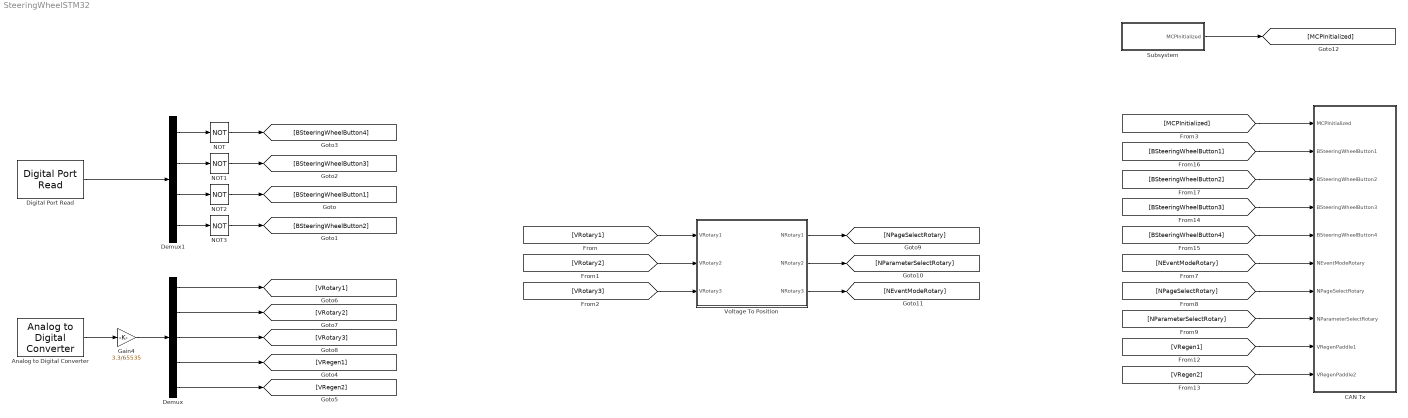
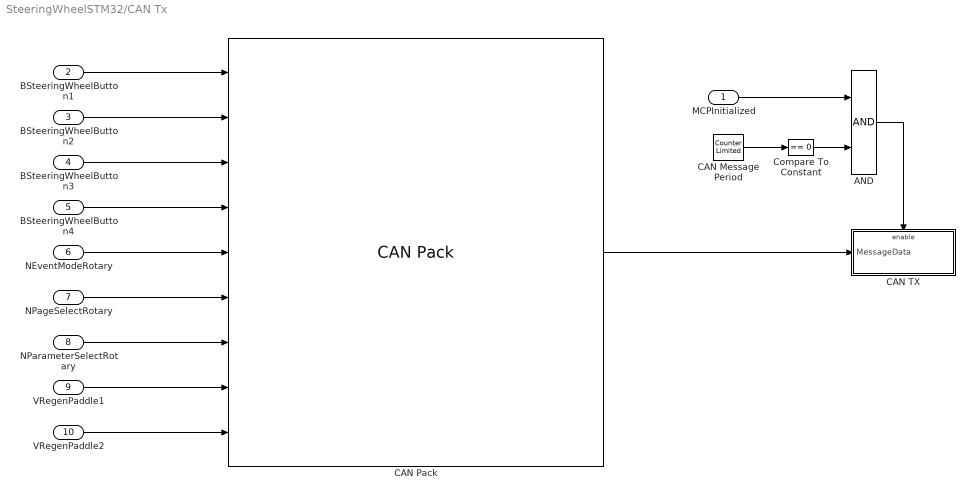
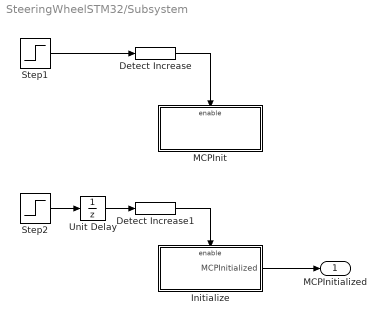
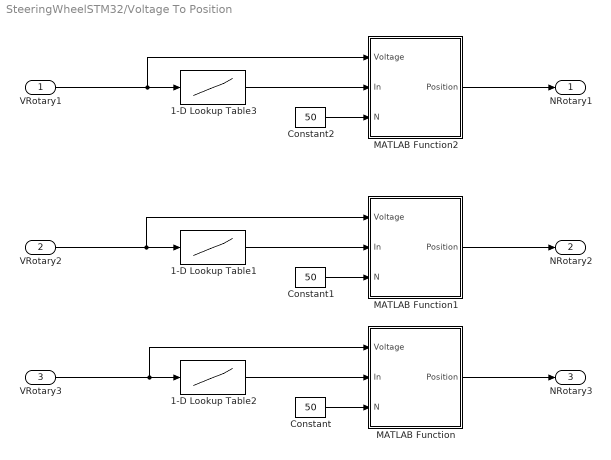
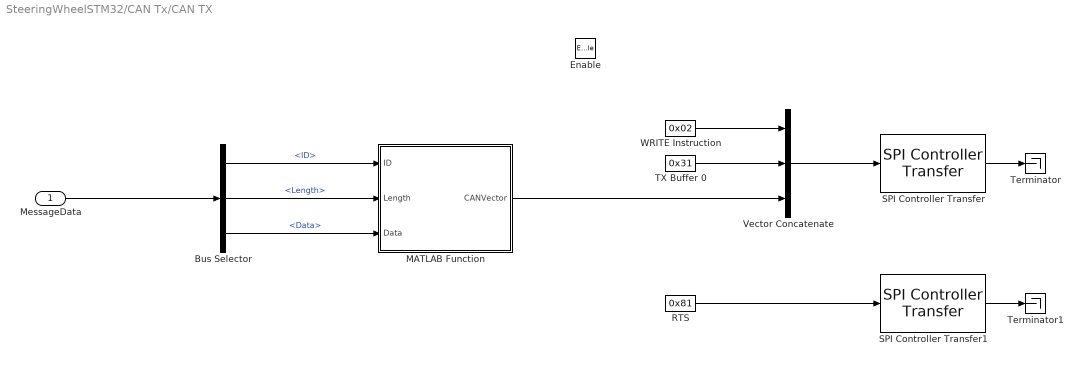
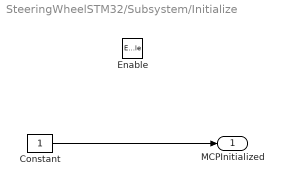
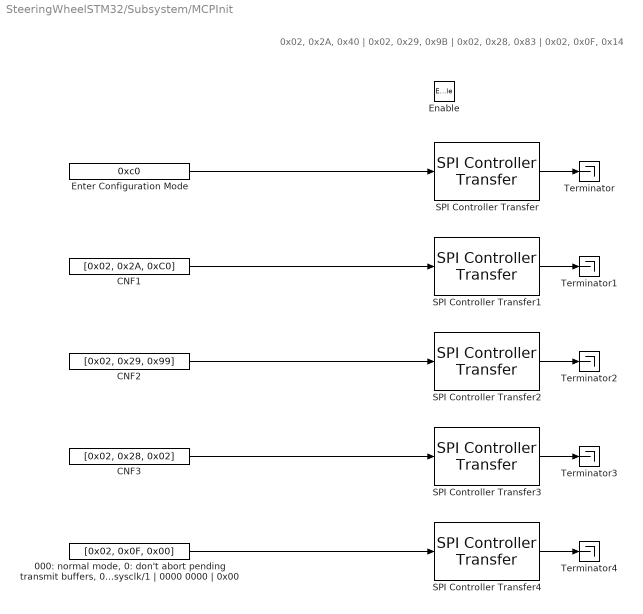
== matlab function SteeringWheelSTM32/CAN Tx/CAN TX/MATLAB Function ==
function CANVector = ConvertToVector(ID, Length, Data)
    %#codegen
    id_u16 = uint16(ID);
    len_u8 = uint8(Length);

    CANVector = zeros(1, 13, 'uint8');  % 13 bytes only — no instruction

    CANVector(1) = uint8(bitshift(id_u16, -3));              % SIDH: ID[10:3]
    CANVector(2) = uint8(bitshift(bitand(id_u16, uint16(7)), 5)); % SIDL: ID[2:0]<<5, EXIDE=0
    CANVector(3) = uint8(0);   % EID8 unused
    CANVector(4) = uint8(0);   % EID0 unused
    CANVector(5) = bitand(len_u8, uint8(15));  % DLC
    for i = 1:8
        CANVector(5+i) = uint8(Data(i));
    end

== matlab function SteeringWheelSTM32/Voltage To Position/MATLAB Function ==
function Position = Debounce(Voltage, In, N)
    persistent current candidate count;
    
    if isempty(current)
        current = In;
        candidate = In;
        count = 0;
    end
    
    % IGNORE reading entirely if voltage is near 0 (in transition)
    if Voltage < 0.15
        Position = current;  % just hold, don't even consider updating
        return;
    end
    
    if In == candidate
        count = count + 1;
    else
        candidate = In;
        count = 0;
    end
    
    if count >= N
        current = candidate;
    end
    
    Position = current;
end

== matlab function SteeringWheelSTM32/Voltage To Position/MATLAB Function1 ==
function Position = Debounce(Voltage, In, N)
    persistent current candidate count;
    
    if isempty(current)
        current = In;
        candidate = In;
        count = 0;
    end
    
    % IGNORE reading entirely if voltage is near 0 (in transition)
    if Voltage < 0.15
        Position = current;  % just hold, don't even consider updating
        return;
    end
    
    if In == candidate
        count = count + 1;
    else
        candidate = In;
        count = 0;
    end
    
    if count >= N
        current = candidate;
    end
    
    Position = current;
end

== matlab function SteeringWheelSTM32/Voltage To Position/MATLAB Function2 ==
function Position = Debounce(Voltage, In, N)
    persistent current candidate count;
    
    if isempty(current)
        current = In;
        candidate = In;
        count = 0;
    end
    
    % IGNORE reading entirely if voltage is near 0 (in transition)
    if Voltage < 0.15
        Position = current;  % just hold, don't even consider updating
        return;
    end
    
    if In == candidate
        count = count + 1;
    else
        candidate = In;
        count = 0;
    end
    
    if count >= N
        current = candidate;
    end
    
    Position = current;
end

/*
 * Academic License - for use in teaching, academic research, and meeting
 * course requirements at degree granting institutions only.  Not for
 * government, commercial, or other organizational use.
 *
 * File: SteeringWheelSTM32.c
 *
 * Code generated for Simulink model 'SteeringWheelSTM32'.
 *
 * Model version                  : 13.148
 * Simulink Coder version         : 24.2 (R2024b) 21-Jun-2024
 * C/C++ source code generated on : Mon Jun  8 11:07:56 2026
 *
 * Target selection: ert.tlc
 * Embedded hardware selection: ARM Compatible->ARM Cortex-M
 * Code generation objectives: Unspecified
 * Validation result: Not run
 */

#include "SteeringWheelSTM32.h"
#include "rtwtypes.h"
#include "SteeringWheelSTM32_types.h"
#include "SteeringWheelSTM32_private.h"
#include "mw_stm32_spi_ll.h"
#include "stm_adc_ll.h"

/* Block signals (default storage) */
B_SteeringWheelSTM32_T SteeringWheelSTM32_B;

/* Block states (default storage) */
DW_SteeringWheelSTM32_T SteeringWheelSTM32_DW;

/* Real-time model */
static RT_MODEL_SteeringWheelSTM32_T SteeringWheelSTM32_M_;
RT_MODEL_SteeringWheelSTM32_T *const SteeringWheelSTM32_M =
  &SteeringWheelSTM32_M_;

/* Forward declaration for local functions */
static void SteeringWheelS_SystemCore_setup(stm32cube_blocks_AnalogInputF_T *obj);
uint32_T plook_u32f_binckan(real32_T u, const real32_T bp[], uint32_T maxIndex)
{
  uint32_T bpIndex;

  /* Prelookup - Index only
     Index Search method: 'binary'
     Interpolation method: 'Use nearest'
     Extrapolation method: 'Clip'
     Use previous index: 'off'
     Use last breakpoint for index at or above upper limit: 'on'
     Remove protection against out-of-range input in generated code: 'off'
   */
  if (u <= bp[0U]) {
    bpIndex = 0U;
  } else if (u < bp[maxIndex]) {
    bpIndex = binsearch_u32f(u, bp, maxIndex >> 1U, maxIndex);
    if ((bpIndex < maxIndex) && (bp[bpIndex + 1U] - u <= u - bp[bpIndex])) {
      bpIndex++;
    }
  } else {
    bpIndex = maxIndex;
  }

  return bpIndex;
}

uint32_T binsearch_u32f(real32_T u, const real32_T bp[], uint32_T startIndex,
  uint32_T maxIndex)
{
  uint32_T bpIdx;
  uint32_T bpIndex;
  uint32_T iRght;

  /* Binary Search */
  bpIdx = startIndex;
  bpIndex = 0U;
  iRght = maxIndex;
  while (iRght - bpIndex > 1U) {
    if (u < bp[bpIdx]) {
      iRght = bpIdx;
    } else {
      bpIndex = bpIdx;
    }

    bpIdx = (iRght + bpIndex) >> 1U;
  }

  return bpIndex;
}

/* System initialize for atomic system: */
void Ste_SPIControllerTransfer1_Init(DW_SPIControllerTransfer1_Ste_T *localDW)
{
  STM32_SPI_ModuleStruct_T b;

  /* Start for MATLABSystem: '<S9>/SPI Controller Transfer1' */
  localDW->obj.matlabCodegenIsDeleted = false;
  localDW->objisempty = true;
  localDW->obj.isInitialized = 1;
  b.PeripheralPtr = SPI1;
  localDW->obj.MW_SPI_HANDLE = SPI_STM32_Init(&b);
  MW_STM32_SPI_SetFormat(localDW->obj.MW_SPI_HANDLE, 0U, 1792U, MW_SPI_MODE_2);
  localDW->obj.isSetupComplete = true;
}

/* Output and update for atomic system: */
void Steering_SPIControllerTransfer1(uint8_T rtu_0,
  DW_SPIControllerTransfer1_Ste_T *localDW)
{
  uint8_T rdDataRaw;

  /* MATLABSystem: '<S9>/SPI Controller Transfer1' */
  rdDataRaw = MW_STM32_SPI_SetFormat(localDW->obj.MW_SPI_HANDLE, 0U, 1792U,
    MW_SPI_MODE_2);
  if (rdDataRaw == 0) {
    GPIO_TypeDef * portNameLoc;
    portNameLoc = GPIOA;
    LL_GPIO_ResetOutputPin(portNameLoc, 16U);
    MW_SPI_MasterWriteRead_Databits(localDW->obj.MW_SPI_HANDLE, &rtu_0,
      &rdDataRaw, 0, 1U, 1, 10U);
    LL_GPIO_SetOutputPin(portNameLoc, 16U);
  }

  /* End of MATLABSystem: '<S9>/SPI Controller Transfer1' */
}

/* Termination for atomic system: */
void Ste_SPIControllerTransfer1_Term(DW_SPIControllerTransfer1_Ste_T *localDW)
{
  /* Terminate for MATLABSystem: '<S9>/SPI Controller Transfer1' */
  if (!localDW->obj.matlabCodegenIsDeleted) {
    localDW->obj.matlabCodegenIsDeleted = true;
    if ((localDW->obj.isInitialized == 1) && localDW->obj.isSetupComplete) {
      uint32_T SPIPinsLoc;
      SPIPinsLoc = MW_UNDEFINED_VALUE;
      MW_SPI_Close(localDW->obj.MW_SPI_HANDLE, SPIPinsLoc, SPIPinsLoc,
                   SPIPinsLoc, 4U);
    }
  }

  /* End of Terminate for MATLABSystem: '<S9>/SPI Controller Transfer1' */
}

/* System initialize for atomic system: */
void S_SPIControllerTransfer1_d_Init(DW_SPIControllerTransfer1_S_f_T *localDW)
{
  STM32_SPI_ModuleStruct_T b;

  /* Start for MATLABSystem: '<S19>/SPI Controller Transfer1' */
  localDW->obj.matlabCodegenIsDeleted = false;
  localDW->objisempty = true;
  localDW->obj.isInitialized = 1;
  b.PeripheralPtr = SPI1;
  localDW->obj.MW_SPI_HANDLE = SPI_STM32_Init(&b);
  MW_STM32_SPI_SetFormat(localDW->obj.MW_SPI_HANDLE, 0U, 1792U, MW_SPI_MODE_2);
  localDW->obj.isSetupComplete = true;
}

/* Output and update for atomic system: */
void Steeri_SPIControllerTransfer1_p(const uint8_T rtu_0[3],
  DW_SPIControllerTransfer1_S_f_T *localDW)
{
  uint8_T tmp[3];
  uint8_T status;

  /* MATLABSystem: '<S19>/SPI Controller Transfer1' */
  status = MW_STM32_SPI_SetFormat(localDW->obj.MW_SPI_HANDLE, 0U, 1792U,
    MW_SPI_MODE_2);
  if (status == 0) {
    GPIO_TypeDef * portNameLoc;
    portNameLoc = GPIOA;
    LL_GPIO_ResetOutputPin(portNameLoc, 16U);
    MW_SPI_MasterWriteRead_Databits(localDW->obj.MW_SPI_HANDLE, &rtu_0[0], &tmp
      [0], 0, 3U, 1, 10U);
    LL_GPIO_SetOutputPin(portNameLoc, 16U);
  }

  /* End of MATLABSystem: '<S19>/SPI Controller Transfer1' */
}

/* Termination for atomic system: */
void S_SPIControllerTransfer1_o_Term(DW_SPIControllerTransfer1_S_f_T *localDW)
{
  /* Terminate for MATLABSystem: '<S19>/SPI Controller Transfer1' */
  if (!localDW->obj.matlabCodegenIsDeleted) {
    localDW->obj.matlabCodegenIsDeleted = true;
    if ((localDW->obj.isInitialized == 1) && localDW->obj.isSetupComplete) {
      uint32_T SPIPinsLoc;
      SPIPinsLoc = MW_UNDEFINED_VALUE;
      MW_SPI_Close(localDW->obj.MW_SPI_HANDLE, SPIPinsLoc, SPIPinsLoc,
                   SPIPinsLoc, 4U);
    }
  }

  /* End of Terminate for MATLABSystem: '<S19>/SPI Controller Transfer1' */
}

/*
 * Output and update for atomic system:
 *    '<S5>/MATLAB Function1'
 *    '<S5>/MATLAB Function2'
 */
void SteeringWheelST_MATLABFunction1(real32_T rtu_Voltage, uint8_T rtu_In,
  real_T rtu_N, uint8_T *rty_Position, DW_MATLABFunction1_SteeringWh_T *localDW)
{
  if (!localDW->current_not_empty) {
    localDW->current = rtu_In;
    localDW->current_not_empty = true;
    localDW->candidate = rtu_In;
  }

  if (rtu_Voltage < 0.15) {
    *rty_Position = localDW->current;
  } else {
    if (rtu_In == localDW->candidate) {
      localDW->count++;
    } else {
      localDW->candidate = rtu_In;
      localDW->count = 0.0;
    }

    if (localDW->count >= rtu_N) {
      localDW->current = localDW->candidate;
    }

    *rty_Position = localDW->current;
  }
}

static void SteeringWheelS_SystemCore_setup(stm32cube_blocks_AnalogInputF_T *obj)
{
  ADC_Type_T adcStructLoc;

  /* Start for MATLABSystem: '<S7>/Analog to Digital Converter' */
  obj->isInitialized = 1;
  obj->ADCInternalBuffer = GET_ADC1_DMA_BUFFER();
  adcStructLoc.InjectedNoOfConversion = 0U;
  adcStructLoc.InternalBufferPtr = obj->ADCInternalBuffer;
  adcStructLoc.peripheralPtr = ADC1;
  adcStructLoc.dmaPeripheralPtr = DMA1;
  adcStructLoc.dmastream = LL_DMA_STREAM_0;
  adcStructLoc.DataTransferMode = ADC_DMA_CIRCULAR;
  adcStructLoc.DmaTransferMode = ADC_DMA_TRANSFER_LIMITED;
  adcStructLoc.InternalBufferSize = 5U;
  adcStructLoc.RegularNoOfConversion = 5U;
  obj->ADCHandle = ADC_Handle_Init(&adcStructLoc, ADC_DMA_INTERRUPT_MODE, 1,
    ADC_READ, LL_ADC_REG_SEQ_SCAN_ENABLE_5RANKS);
  enableADCAutomaticCalibration(obj->ADCHandle, (uint32_T)LL_ADC_CALIB_OFFSET, 2);
  enableADC(obj->ADCHandle);
  startADCConversionForExternalTrigger(obj->ADCHandle, 1);
  obj->isSetupComplete = true;
}

/* Model step function */
void SteeringWheelSTM32_step(void)
{
  GPIO_TypeDef * portNameLoc;
  real_T rtb_UnitDelay;
  int32_T i;
  uint32_T rtb_AnalogtoDigitalConverter_0[5];
  uint32_T pinReadLoc;
  uint8_T rtb_VectorConcatenate[15];
  uint8_T tmp[15];
  uint8_T rtb_uDLookupTable2;
  boolean_T rtb_Step1_tmp;

  /* MATLABSystem: '<S7>/Analog to Digital Converter' */
  regularReadADCDMA(SteeringWheelSTM32_DW.obj.ADCHandle, ADC_READ,
                    &rtb_AnalogtoDigitalConverter_0[0]);
  for (i = 0; i < 5; i++) {
    /* Gain: '<Root>/Gain4' incorporates:
     *  MATLABSystem: '<S7>/Analog to Digital Converter'
     */
    SteeringWheelSTM32_B.Gain4[i] = 5.03547708E-5F * (real32_T)
      rtb_AnalogtoDigitalConverter_0[i];
  }

  /* MATLABSystem: '<S15>/Digital Port Read' */
  pinReadLoc = LL_GPIO_ReadInputPort(GPIOA);

  /* Logic: '<Root>/NOT2' incorporates:
   *  MATLABSystem: '<S15>/Digital Port Read'
   * */
  SteeringWheelSTM32_B.NOT2 = ((pinReadLoc & 2048U) == 0U);

  /* Logic: '<Root>/NOT3' incorporates:
   *  MATLABSystem: '<S15>/Digital Port Read'
   * */
  SteeringWheelSTM32_B.NOT3 = ((pinReadLoc & 4096U) == 0U);

  /* Logic: '<Root>/NOT1' incorporates:
   *  MATLABSystem: '<S15>/Digital Port Read'
   * */
  SteeringWheelSTM32_B.NOT1 = ((pinReadLoc & 1024U) == 0U);

  /* Logic: '<Root>/NOT' incorporates:
   *  MATLABSystem: '<S15>/Digital Port Read'
   * */
  SteeringWheelSTM32_B.NOT = ((pinReadLoc & 512U) == 0U);

  /* Lookup_n-D: '<S5>/1-D Lookup Table2' */
  rtb_uDLookupTable2 = SteeringWheelSTM32_ConstP.pooled5[plook_u32f_binckan
    (SteeringWheelSTM32_B.Gain4[2], SteeringWheelSTM32_ConstP.pooled4, 15U)];

  /* MATLAB Function: '<S5>/MATLAB Function' incorporates:
   *  Constant: '<S5>/Constant'
   */
  if (!SteeringWheelSTM32_DW.current_not_empty) {
    SteeringWheelSTM32_DW.current = rtb_uDLookupTable2;
    SteeringWheelSTM32_DW.current_not_empty = true;
    SteeringWheelSTM32_DW.candidate = rtb_uDLookupTable2;
  }

  if (SteeringWheelSTM32_B.Gain4[2] < 0.15) {
    SteeringWheelSTM32_B.Position_n = SteeringWheelSTM32_DW.current;
  } else {
    if (rtb_uDLookupTable2 == SteeringWheelSTM32_DW.candidate) {
      SteeringWheelSTM32_DW.count++;
    } else {
      SteeringWheelSTM32_DW.candidate = rtb_uDLookupTable2;
      SteeringWheelSTM32_DW.count = 0.0;
    }

    if (SteeringWheelSTM32_DW.count >= 50.0) {
      SteeringWheelSTM32_DW.current = SteeringWheelSTM32_DW.candidate;
    }

    SteeringWheelSTM32_B.Position_n = SteeringWheelSTM32_DW.current;
  }

  /* End of MATLAB Function: '<S5>/MATLAB Function' */

  /* MATLAB Function: '<S5>/MATLAB Function2' incorporates:
   *  Constant: '<S5>/Constant2'
   *  Lookup_n-D: '<S5>/1-D Lookup Table3'
   */
  SteeringWheelST_MATLABFunction1(SteeringWheelSTM32_B.Gain4[0],
    SteeringWheelSTM32_ConstP.pooled5[plook_u32f_binckan
    (SteeringWheelSTM32_B.Gain4[0], SteeringWheelSTM32_ConstP.pooled4, 15U)],
    50.0, &SteeringWheelSTM32_B.Position,
    &SteeringWheelSTM32_DW.sf_MATLABFunction2);

  /* MATLAB Function: '<S5>/MATLAB Function1' incorporates:
   *  Constant: '<S5>/Constant1'
   *  Lookup_n-D: '<S5>/1-D Lookup Table1'
   */
  SteeringWheelST_MATLABFunction1(SteeringWheelSTM32_B.Gain4[1],
    SteeringWheelSTM32_ConstP.pooled5[plook_u32f_binckan
    (SteeringWheelSTM32_B.Gain4[1], SteeringWheelSTM32_ConstP.pooled4, 15U)],
    50.0, &SteeringWheelSTM32_B.Position_e,
    &SteeringWheelSTM32_DW.sf_MATLABFunction1);

  /* S-Function (scanpack): '<S2>/CAN Pack' */
  /* S-Function (scanpack): '<S2>/CAN Pack' */
  SteeringWheelSTM32_B.CANPack.ID = 507U;
  SteeringWheelSTM32_B.CANPack.Length = 6U;
  SteeringWheelSTM32_B.CANPack.Extended = 0U;
  SteeringWheelSTM32_B.CANPack.Remote = 0;
  SteeringWheelSTM32_B.CANPack.Data[0] = 0;
  SteeringWheelSTM32_B.CANPack.Data[1] = 0;
  SteeringWheelSTM32_B.CANPack.Data[2] = 0;
  SteeringWheelSTM32_B.CANPack.Data[3] = 0;
  SteeringWheelSTM32_B.CANPack.Data[4] = 0;
  SteeringWheelSTM32_B.CANPack.Data[5] = 0;
  SteeringWheelSTM32_B.CANPack.Data[6] = 0;
  SteeringWheelSTM32_B.CANPack.Data[7] = 0;

  {
    /* --------------- START Packing signal 0 ------------------
     *  startBit                = 0
     *  length                  = 1
     *  desiredSignalByteLayout = LITTLEENDIAN
     *  dataType                = UNSIGNED
     *  factor                  = 1.0
     *  offset                  = 0.0
     *  minimum                 = 0.0
     *  maximum                 = 0.0
     * -----------------------------------------------------------------------*/
    {
      uint32_T packingValue = 0;

      {
        uint32_T result = (uint32_T) (SteeringWheelSTM32_B.NOT2);

        /* no scaling required */
        packingValue = result;
      }

      {
        uint8_T packedValue;
        if (packingValue > (boolean_T)(1)) {
          packedValue = (uint8_T) 1;
        } else if (packingValue < (boolean_T)(0)) {
          packedValue = (uint8_T) 0;
        } else {
          packedValue = (uint8_T) (packingValue);
        }

        {
          {
            SteeringWheelSTM32_B.CANPack.Data[0] =
              SteeringWheelSTM32_B.CANPack.Data[0] | (uint8_T)((uint8_T)
              (packedValue & (uint8_T)0x1U));
          }
        }
      }
    }

    /* --------------- START Packing signal 1 ------------------
     *  startBit                = 1
     *  length                  = 1
     *  desiredSignalByteLayout = LITTLEENDIAN
     *  dataType                = UNSIGNED
     *  factor                  = 1.0
     *  offset                  = 0.0
     *  minimum                 = 0.0
     *  maximum                 = 0.0
     * -----------------------------------------------------------------------*/
    {
      uint32_T packingValue = 0;

      {
        uint32_T result = (uint32_T) (SteeringWheelSTM32_B.NOT3);

        /* no scaling required */
        packingValue = result;
      }

      {
        uint8_T packedValue;
        if (packingValue > (boolean_T)(1)) {
          packedValue = (uint8_T) 1;
        } else if (packingValue < (boolean_T)(0)) {
          packedValue = (uint8_T) 0;
        } else {
          packedValue = (uint8_T) (packingValue);
        }

        {
          {
            SteeringWheelSTM32_B.CANPack.Data[0] =
              SteeringWheelSTM32_B.CANPack.Data[0] | (uint8_T)((uint8_T)
              ((uint8_T)(packedValue & (uint8_T)0x1U) << 1));
          }
        }
      }
    }

    /* --------------- START Packing signal 2 ------------------
     *  startBit                = 2
     *  length                  = 1
     *  desiredSignalByteLayout = LITTLEENDIAN
     *  dataType                = UNSIGNED
     *  factor                  = 1.0
     *  offset                  = 0.0
     *  minimum                 = 0.0
     *  maximum                 = 0.0
     * -----------------------------------------------------------------------*/
    {
      uint32_T packingValue = 0;

      {
        uint32_T result = (uint32_T) (SteeringWheelSTM32_B.NOT1);

        /* no scaling required */
        packingValue = result;
      }

      {
        uint8_T packedValue;
        if (packingValue > (boolean_T)(1)) {
          packedValue = (uint8_T) 1;
        } else if (packingValue < (boolean_T)(0)) {
          packedValue = (uint8_T) 0;
        } else {
          packedValue = (uint8_T) (packingValue);
        }

        {
          {
            SteeringWheelSTM32_B.CANPack.Data[0] =
              SteeringWheelSTM32_B.CANPack.Data[0] | (uint8_T)((uint8_T)
              ((uint8_T)(packedValue & (uint8_T)0x1U) << 2));
          }
        }
      }
    }

    /* --------------- START Packing signal 3 ------------------
     *  startBit                = 3
     *  length                  = 1
     *  desiredSignalByteLayout = LITTLEENDIAN
     *  dataType                = UNSIGNED
     *  factor                  = 1.0
     *  offset                  = 0.0
     *  minimum                 = 0.0
     *  maximum                 = 0.0
     * -----------------------------------------------------------------------*/
    {
      uint32_T packingValue = 0;

      {
        uint32_T result = (uint32_T) (SteeringWheelSTM32_B.NOT);

        /* no scaling required */
        packingValue = result;
      }

      {
        uint8_T packedValue;
        if (packingValue > (boolean_T)(1)) {
          packedValue = (uint8_T) 1;
        } else if (packingValue < (boolean_T)(0)) {
          packedValue = (uint8_T) 0;
        } else {
          packedValue = (uint8_T) (packingValue);
        }

        {
          {
            SteeringWheelSTM32_B.CANPack.Data[0] =
              SteeringWheelSTM32_B.CANPack.Data[0] | (uint8_T)((uint8_T)
              ((uint8_T)(packedValue & (uint8_T)0x1U) << 3));
          }
        }
      }
    }

    /* --------------- START Packing signal 4 ------------------
     *  startBit                = 12
     *  length                  = 4
     *  desiredSignalByteLayout = LITTLEENDIAN
     *  dataType                = UNSIGNED
     *  factor                  = 1.0
     *  offset                  = 1.0
     *  minimum                 = 0.0
     *  maximum                 = 0.0
     * -----------------------------------------------------------------------*/
    {
      uint32_T packingValue = 0;

      {
        uint32_T result = (uint32_T) (SteeringWheelSTM32_B.Position_n);

        /* no factor to apply */
        result = (uint32_T) (result - 1U);
        packingValue = result;
      }

      {
        uint8_T packedValue;
        if (packingValue > (uint8_T)(15)) {
          packedValue = (uint8_T) 15;
        } else {
          packedValue = (uint8_T) (packingValue);
        }

        {
          {
            SteeringWheelSTM32_B.CANPack.Data[1] =
              SteeringWheelSTM32_B.CANPack.Data[1] | (uint8_T)((uint8_T)
              ((uint8_T)(packedValue & (uint8_T)0xFU) << 4));
          }
        }
      }
    }

    /* --------------- START Packing signal 5 ------------------
     *  startBit                = 4
     *  length                  = 4
     *  desiredSignalByteLayout = LITTLEENDIAN
     *  dataType                = UNSIGNED
     *  factor                  = 1.0
     *  offset                  = 1.0
     *  minimum                 = 0.0
     *  maximum                 = 0.0
     * -----------------------------------------------------------------------*/
    {
      uint32_T packingValue = 0;

      {
        uint32_T result = (uint32_T) (SteeringWheelSTM32_B.Position);

        /* no factor to apply */
        result = (uint32_T) (result - 1U);
        packingValue = result;
      }

      {
        uint8_T packedValue;
        if (packingValue > (uint8_T)(15)) {
          packedValue = (uint8_T) 15;
        } else {
          packedValue = (uint8_T) (packingValue);
        }

        {
          {
            SteeringWheelSTM32_B.CANPack.Data[0] =
              SteeringWheelSTM32_B.CANPack.Data[0] | (uint8_T)((uint8_T)
              ((uint8_T)(packedValue & (uint8_T)0xFU) << 4));
          }
        }
      }
    }

    /* --------------- START Packing signal 6 ------------------
     *  startBit                = 8
     *  length                  = 4
     *  desiredSignalByteLayout = LITTLEENDIAN
     *  dataType                = UNSIGNED
     *  factor                  = 1.0
     *  offset                  = 1.0
     *  minimum                 = 0.0
     *  maximum                 = 0.0
     * -----------------------------------------------------------------------*/
    {
      uint32_T packingValue = 0;

      {
        uint32_T result = (uint32_T) (SteeringWheelSTM32_B.Position_e);

        /* no factor to apply */
        result = (uint32_T) (result - 1U);
        packingValue = result;
      }

      {
        uint8_T packedValue;
        if (packingValue > (uint8_T)(15)) {
          packedValue = (uint8_T) 15;
        } else {
          packedValue = (uint8_T) (packingValue);
        }

        {
          {
            SteeringWheelSTM32_B.CANPack.Data[1] =
              SteeringWheelSTM32_B.CANPack.Data[1] | (uint8_T)((uint8_T)
              (packedValue & (uint8_T)0xFU));
          }
        }
      }
    }

    /* --------------- START Packing signal 7 ------------------
     *  startBit                = 16
     *  length                  = 8
     *  desiredSignalByteLayout = LITTLEENDIAN
     *  dataType                = UNSIGNED
     *  factor                  = 0.0129
     *  offset                  = 0.0
     *  minimum                 = 0.0
     *  maximum                 = 0.0
     * -----------------------------------------------------------------------*/
    {
      real32_T outValue = 0;

      {
        real32_T result = SteeringWheelSTM32_B.Gain4[3];

        /* no offset to apply */
        result = result * (1 / 0.0129F);

        /* round to closest integer value for integer CAN signal */
        outValue = roundf(result);
      }

      {
        uint8_T packedValue;
        if (outValue > (real32_T)(255)) {
          packedValue = (uint8_T) 255;
        } else if (outValue < (real32_T)(0)) {
          packedValue = (uint8_T) 0;
        } else {
          packedValue = (uint8_T) (outValue);
        }

        {
          {
            SteeringWheelSTM32_B.CANPack.Data[2] =
              SteeringWheelSTM32_B.CANPack.Data[2] | (uint8_T)(packedValue);
          }
        }
      }
    }

    /* --------------- START Packing signal 8 ------------------
     *  startBit                = 24
     *  length                  = 8
     *  desiredSignalByteLayout = LITTLEENDIAN
     *  dataType                = UNSIGNED
     *  factor                  = 0.0129
     *  offset                  = 0.0
     *  minimum                 = 0.0
     *  maximum                 = 0.0
     * -----------------------------------------------------------------------*/
    {
      real32_T outValue = 0;

      {
        real32_T result = SteeringWheelSTM32_B.Gain4[4];

        /* no offset to apply */
        result = result * (1 / 0.0129F);

        /* round to closest integer value for integer CAN signal */
        outValue = roundf(result);
      }

      {
        uint8_T packedValue;
        if (outValue > (real32_T)(255)) {
          packedValue = (uint8_T) 255;
        } else if (outValue < (real32_T)(0)) {
          packedValue = (uint8_T) 0;
        } else {
          packedValue = (uint8_T) (outValue);
        }

        {
          {
            SteeringWheelSTM32_B.CANPack.Data[3] =
              SteeringWheelSTM32_B.CANPack.Data[3] | (uint8_T)(packedValue);
          }
        }
      }
    }
  }

  /* UnitDelay: '<S4>/Unit Delay' */
  rtb_UnitDelay = SteeringWheelSTM32_DW.UnitDelay_DSTATE;

  /* Outputs for Enabled SubSystem: '<S4>/Initialize' incorporates:
   *  EnablePort: '<S18>/Enable'
   */
  /* RelationalOperator: '<S17>/FixPt Relational Operator' incorporates:
   *  UnitDelay: '<S17>/Delay Input1'
   *  UnitDelay: '<S4>/Unit Delay'
   *
   * Block description for '<S17>/Delay Input1':
   *
   *  Store in Global RAM
   */
  if (SteeringWheelSTM32_DW.UnitDelay_DSTATE >
      SteeringWheelSTM32_DW.DelayInput1_DSTATE) {
    /* SignalConversion generated from: '<S18>/MCPInitialized' */
    SteeringWheelSTM32_B.OutportBufferForMCPInitialized =
      SteeringWheelSTM32_ConstB.Constant;
  }

  /* End of RelationalOperator: '<S17>/FixPt Relational Operator' */
  /* End of Outputs for SubSystem: '<S4>/Initialize' */

  /* Outputs for Enabled SubSystem: '<S2>/CAN TX' incorporates:
   *  EnablePort: '<S9>/Enable'
   */
  /* Logic: '<S2>/AND' incorporates:
   *  Constant: '<S10>/Constant'
   *  Constant: '<S9>/RTS'
   *  Constant: '<S9>/TX Buffer 0'
   *  Constant: '<S9>/WRITE Instruction'
   *  RelationalOperator: '<S10>/Compare'
   *  UnitDelay: '<S8>/Output'
   */
  if (SteeringWheelSTM32_B.OutportBufferForMCPInitialized &&
      (SteeringWheelSTM32_DW.Output_DSTATE == 0)) {
    /* MATLAB Function: '<S9>/MATLAB Function' */
    pinReadLoc = SteeringWheelSTM32_B.CANPack.ID;
    if (SteeringWheelSTM32_B.CANPack.ID > 65535U) {
      pinReadLoc = 65535U;
    }

    for (i = 0; i < 13; i++) {
      rtb_VectorConcatenate[i + 2] = 0U;
    }

    i = (uint16_T)pinReadLoc >> 3;
    if (i > 255) {
      i = 255;
    }

    rtb_VectorConcatenate[2] = (uint8_T)i;
    rtb_VectorConcatenate[3] = (uint8_T)((int32_T)((uint16_T)pinReadLoc & 7U) <<
      5);
    rtb_VectorConcatenate[4] = 0U;
    rtb_VectorConcatenate[5] = 0U;
    rtb_VectorConcatenate[6] = (uint8_T)(SteeringWheelSTM32_B.CANPack.Length &
      15);
    for (i = 0; i < 8; i++) {
      rtb_VectorConcatenate[i + 7] = SteeringWheelSTM32_B.CANPack.Data[i];
    }

    /* End of MATLAB Function: '<S9>/MATLAB Function' */
    rtb_VectorConcatenate[0] = 2U;
    rtb_VectorConcatenate[1] = 49U;

    /* MATLABSystem: '<S9>/SPI Controller Transfer' incorporates:
     *  Concatenate: '<S9>/Vector Concatenate'
     *  Constant: '<S9>/TX Buffer 0'
     *  Constant: '<S9>/WRITE Instruction'
     */
    rtb_uDLookupTable2 = MW_STM32_SPI_SetFormat
      (SteeringWheelSTM32_DW.obj_d.MW_SPI_HANDLE, 0U, 1792U, MW_SPI_MODE_2);
    if (rtb_uDLookupTable2 == 0) {
      portNameLoc = GPIOA;
      LL_GPIO_ResetOutputPin(portNameLoc, 16U);
      MW_SPI_MasterWriteRead_Databits(SteeringWheelSTM32_DW.obj_d.MW_SPI_HANDLE,
        &rtb_VectorConcatenate[0], &tmp[0], 0, 15U, 1, 10U);
      LL_GPIO_SetOutputPin(portNameLoc, 16U);
    }

    /* End of MATLABSystem: '<S9>/SPI Controller Transfer' */
    Steering_SPIControllerTransfer1(129,
      &SteeringWheelSTM32_DW.SPIControllerTransfer1);
  }

  /* End of Logic: '<S2>/AND' */
  /* End of Outputs for SubSystem: '<S2>/CAN TX' */

  /* Switch: '<S12>/FixPt Switch' incorporates:
   *  Constant: '<S11>/FixPt Constant'
   *  Constant: '<S12>/Constant'
   *  Sum: '<S11>/FixPt Sum1'
   *  UnitDelay: '<S8>/Output'
   */
  if ((uint8_T)(SteeringWheelSTM32_DW.Output_DSTATE + 1) > 10) {
    SteeringWheelSTM32_DW.Output_DSTATE = 0U;
  } else {
    SteeringWheelSTM32_DW.Output_DSTATE++;
  }

  /* End of Switch: '<S12>/FixPt Switch' */

  /* Step: '<S4>/Step1' */
  rtb_Step1_tmp = !(((SteeringWheelSTM32_M->Timing.clockTick0) * 0.001) < 1.0);

  /* Outputs for Enabled SubSystem: '<S4>/MCPInit' incorporates:
   *  EnablePort: '<S19>/Enable'
   */
  /* RelationalOperator: '<S16>/FixPt Relational Operator' incorporates:
   *  Constant: '<S19>/ 000: normal mode, 0: don't abort pending transmit buffers, 0: one-shot disabled, 0: CLKOUT disabled, 00: sysclk//1 | 0000 0000 | 0x00'
   *  Constant: '<S19>/CNF1'
   *  Constant: '<S19>/CNF2'
   *  Constant: '<S19>/CNF3'
   *  Constant: '<S19>/Enter Configuration Mode'
   *  UnitDelay: '<S16>/Delay Input1'
   *
   * Block description for '<S16>/Delay Input1':
   *
   *  Store in Global RAM
   */
  if ((real_T)rtb_Step1_tmp > SteeringWheelSTM32_DW.DelayInput1_DSTATE_f) {
    Steering_SPIControllerTransfer1(192,
      &SteeringWheelSTM32_DW.SPIControllerTransfer_p);
    Steeri_SPIControllerTransfer1_p(SteeringWheelSTM32_ConstP.CNF1_Value,
      &SteeringWheelSTM32_DW.SPIControllerTransfer1_p);
    Steeri_SPIControllerTransfer1_p(SteeringWheelSTM32_ConstP.CNF2_Value,
      &SteeringWheelSTM32_DW.SPIControllerTransfer2);
    Steeri_SPIControllerTransfer1_p(SteeringWheelSTM32_ConstP.CNF3_Value,
      &SteeringWheelSTM32_DW.SPIControllerTransfer3);
    Steeri_SPIControllerTransfer1_p
      (SteeringWheelSTM32_ConstP.u00normalmode0dontabortpendingt,
       &SteeringWheelSTM32_DW.SPIControllerTransfer4);
  }

  /* End of RelationalOperator: '<S16>/FixPt Relational Operator' */
  /* End of Outputs for SubSystem: '<S4>/MCPInit' */

  /* Update for UnitDelay: '<S4>/Unit Delay' */
  SteeringWheelSTM32_DW.UnitDelay_DSTATE = rtb_Step1_tmp;

  /* Update for UnitDelay: '<S17>/Delay Input1'
   *
   * Block description for '<S17>/Delay Input1':
   *
   *  Store in Global RAM
   */
  SteeringWheelSTM32_DW.DelayInput1_DSTATE = rtb_UnitDelay;

  /* Update for UnitDelay: '<S16>/Delay Input1'
   *
   * Block description for '<S16>/Delay Input1':
   *
   *  Store in Global RAM
   */
  SteeringWheelSTM32_DW.DelayInput1_DSTATE_f = rtb_Step1_tmp;

  /* Update absolute time for base rate */
  /* The "clockTick0" counts the number of times the code of this task has
   * been executed. The resolution of this integer timer is 0.001, which is the step size
   * of the task. Size of "clockTick0" ensures timer will not overflow during the
   * application lifespan selected.
   */
  SteeringWheelSTM32_M->Timing.clockTick0++;
}
